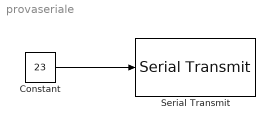
/*
 * Academic License - for use in teaching, academic research, and meeting
 * course requirements at degree granting institutions only.  Not for
 * government, commercial, or other organizational use.
 *
 * File: provaseriale.c
 *
 * Code generated for Simulink model 'provaseriale'.
 *
 * Model version                  : 1.1
 * Simulink Coder version         : 9.4 (R2020b) 29-Jul-2020
 * C/C++ source code generated on : Thu Oct 28 11:25:24 2021
 *
 * Target selection: ert.tlc
 * Embedded hardware selection: ARM Compatible->ARM Cortex
 * Code generation objectives: Unspecified
 * Validation result: Not run
 */

#include "provaseriale.h"
#include "provaseriale_private.h"

/* Block states (default storage) */
DW_provaseriale_T provaseriale_DW;

/* Real-time model */
static RT_MODEL_provaseriale_T provaseriale_M_;
RT_MODEL_provaseriale_T *const provaseriale_M = &provaseriale_M_;
real_T rt_roundd_snf(real_T u)
{
  real_T y;
  if (fabs(u) < 4.503599627370496E+15) {
    if (u >= 0.5) {
      y = floor(u + 0.5);
    } else if (u > -0.5) {
      y = u * 0.0;
    } else {
      y = ceil(u - 0.5);
    }
  } else {
    y = u;
  }

  return y;
}

/* Model step function */
void provaseriale_step(void)
{
  real_T dataIn;

  /* MATLABSystem: '<Root>/Serial Transmit' incorporates:
   *  Constant: '<Root>/Constant'
   */
  if (provaseriale_DW.obj.Protocol != provaseriale_P.SerialTransmit_Protocol) {
    provaseriale_DW.obj.Protocol = provaseriale_P.SerialTransmit_Protocol;
  }

  dataIn = provaseriale_P.Constant_Value;
  MW_Serial_write(provaseriale_DW.obj.port, &dataIn, 1.0,
                  provaseriale_DW.obj.dataSizeInBytes,
                  provaseriale_DW.obj.sendModeEnum, provaseriale_DW.obj.dataType,
                  provaseriale_DW.obj.sendFormatEnum, 2.0, '\x00');

  /* End of MATLABSystem: '<Root>/Serial Transmit' */
}
